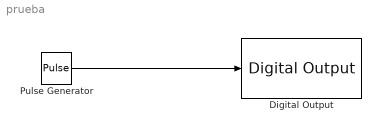
/*
 * File: prueba.c
 *
 * Code generated for Simulink model 'prueba'.
 *
 * Model version                  : 1.1
 * Simulink Coder version         : 8.10 (R2016a) 10-Feb-2016
 * C/C++ source code generated on : Sun May 14 23:56:59 2017
 *
 * Target selection: ert.tlc
 * Embedded hardware selection: Atmel->AVR
 * Code generation objectives: Unspecified
 * Validation result: Not run
 */

#include "prueba.h"
#include "prueba_private.h"

/* Block states (auto storage) */
DW_prueba_T prueba_DW;

/* Real-time model */
RT_MODEL_prueba_T prueba_M_;
RT_MODEL_prueba_T *const prueba_M = &prueba_M_;

/* Model step function */
void prueba_step(void)
{
  real_T rtb_PulseGenerator;
  uint8_T rtb_PulseGenerator_0;

  /* DiscretePulseGenerator: '<Root>/Pulse Generator' */
  rtb_PulseGenerator = (prueba_DW.clockTickCounter <
                        prueba_P.PulseGenerator_Duty) &&
    (prueba_DW.clockTickCounter >= 0L) ? prueba_P.PulseGenerator_Amp : 0.0;
  if (prueba_DW.clockTickCounter >= prueba_P.PulseGenerator_Period - 1.0) {
    prueba_DW.clockTickCounter = 0L;
  } else {
    prueba_DW.clockTickCounter++;
  }

  /* End of DiscretePulseGenerator: '<Root>/Pulse Generator' */

  /* DataTypeConversion: '<S1>/Data Type Conversion' */
  if (rtb_PulseGenerator < 256.0) {
    if (rtb_PulseGenerator >= 0.0) {
      rtb_PulseGenerator_0 = (uint8_T)rtb_PulseGenerator;
    } else {
      rtb_PulseGenerator_0 = 0U;
    }
  } else {
    rtb_PulseGenerator_0 = MAX_uint8_T;
  }

  /* End of DataTypeConversion: '<S1>/Data Type Conversion' */

  /* S-Function (arduinodigitaloutput_sfcn): '<S1>/Digital Output' */
  MW_digitalWrite(prueba_P.DigitalOutput_pinNumber, rtb_PulseGenerator_0);
}
